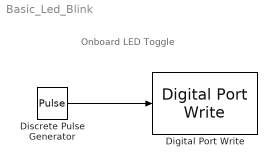
/*
 * Academic License - for use in teaching, academic research, and meeting
 * course requirements at degree granting institutions only.  Not for
 * government, commercial, or other organizational use.
 *
 * File: Basic_Led_Blink.c
 *
 * Code generated for Simulink model 'Basic_Led_Blink'.
 *
 * Model version                  : 1.2
 * Simulink Coder version         : 25.1 (R2025a) 21-Nov-2024
 * C/C++ source code generated on : Mon Feb  9 19:46:46 2026
 *
 * Target selection: ert.tlc
 * Embedded hardware selection: ARM Compatible->ARM Cortex-M
 * Code generation objectives: Unspecified
 * Validation result: Not run
 */

#include "Basic_Led_Blink.h"
#include "rtwtypes.h"

/* Block states (default storage) */
DW_Basic_Led_Blink_T Basic_Led_Blink_DW;

/* Real-time model */
static RT_MODEL_Basic_Led_Blink_T Basic_Led_Blink_M_;
RT_MODEL_Basic_Led_Blink_T *const Basic_Led_Blink_M = &Basic_Led_Blink_M_;

/* Model step function */
void Basic_Led_Blink_step(void)
{
  GPIO_TypeDef * portNameLoc;
  uint32_T shiftVal;
  int32_T rtb_DiscretePulseGenerator;
  uint32_T pinMask;
  uint32_T pinWriteLoc;

  /* DiscretePulseGenerator: '<Root>/Discrete Pulse Generator' */
  rtb_DiscretePulseGenerator = ((Basic_Led_Blink_DW.clockTickCounter < 1) &&
    (Basic_Led_Blink_DW.clockTickCounter >= 0));
  if (Basic_Led_Blink_DW.clockTickCounter >= 1) {
    Basic_Led_Blink_DW.clockTickCounter = 0;
  } else {
    Basic_Led_Blink_DW.clockTickCounter++;
  }

  /* End of DiscretePulseGenerator: '<Root>/Discrete Pulse Generator' */

  /* MATLABSystem: '<S3>/Digital Port Write' */
  portNameLoc = GPIOA;
  shiftVal = MW_GPIO_BIT_SHIFT;
  if (rtb_DiscretePulseGenerator != 0) {
    pinWriteLoc = 32U;
  } else {
    pinWriteLoc = 0U;
  }

  pinWriteLoc = mw_shift(pinWriteLoc, shiftVal);
  pinMask = mw_shift(32U, shiftVal);
  LL_GPIO_SetOutputPin(portNameLoc, pinWriteLoc);
  LL_GPIO_ResetOutputPin(portNameLoc, ~pinWriteLoc & pinMask);

  /* End of MATLABSystem: '<S3>/Digital Port Write' */
}
